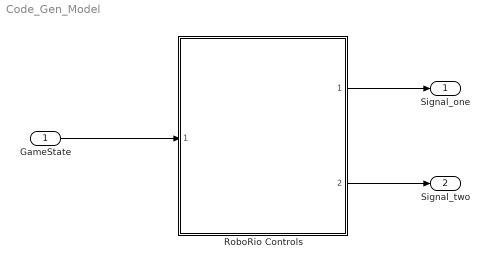
/*
 * Sponsored License - for use in support of a program or activity
 * sponsored by MathWorks.  Not for government, commercial or other
 * non-sponsored organizational use.
 *
 * File: Code_Gen_Model.c
 *
 * Code generated for Simulink model 'Code_Gen_Model'.
 *
 * Model version                  : 5.3
 * Simulink Coder version         : 25.1 (R2025a) 21-Nov-2024
 * C/C++ source code generated on : Thu Jul 10 13:41:32 2025
 *
 * Target selection: ert.tlc
 * Embedded hardware selection: ARM Compatible->ARM 7
 * Code generation objectives: Unspecified
 * Validation result: Not run
 */

#include "Code_Gen_Model.h"
#include <math.h>
#include "rt_nonfinite.h"
#include "rtwtypes.h"

/* Exported block parameters */
real_T Auto_Signal_one = 50.0;         /* Variable: Auto_Signal_one
                                        * Referenced by: '<S7>/Constant'
                                        */
real_T Auto_Signal_two = 60.0;         /* Variable: Auto_Signal_two
                                        * Referenced by: '<S7>/Constant1'
                                        */
real_T Teleop_Signal_one = 10.0;       /* Variable: Teleop_Signal_one
                                        * Referenced by: '<S8>/Constant'
                                        */
real_T Teleop_Signal_two = 20.0;       /* Variable: Teleop_Signal_two
                                        * Referenced by: '<S8>/Constant1'
                                        */

/* Block signals (default storage) */
B_Code_Gen_Model_T Code_Gen_Model_B;

/* External inputs (root inport signals with default storage) */
ExtU_Code_Gen_Model_T Code_Gen_Model_U;

/* External outputs (root outports fed by signals with default storage) */
ExtY_Code_Gen_Model_T Code_Gen_Model_Y;

/* Real-time model */
static RT_MODEL_Code_Gen_Model_T Code_Gen_Model_M_;
RT_MODEL_Code_Gen_Model_T *const Code_Gen_Model_M = &Code_Gen_Model_M_;

/* Model step function */
void Code_Gen_Model_step(void)
{
  real_T tmp;

  /* SwitchCase: '<S1>/Switch Case' incorporates:
   *  Constant: '<S8>/Constant'
   *  Inport: '<Root>/GameState'
   */
  tmp = trunc(Code_Gen_Model_U.GameState);
  if ((rtIsNaN(tmp)) || (rtIsInf(tmp))) {
    tmp = 0.0;
  } else {
    tmp = fmod(tmp, 4.294967296E+9);
  }

  switch ((tmp < 0.0) ? (-((int32_T)((uint32_T)(-tmp)))) : ((int32_T)((uint32_T)
            tmp))) {
   case 0:
    /* Outputs for IfAction SubSystem: '<S1>/Disabled' incorporates:
     *  ActionPort: '<S3>/Action Port'
     */
    /* Outport: '<Root>/Signal_one' incorporates:
     *  Constant: '<S3>/Constant'
     *  SignalConversion generated from: '<S3>/Signal_one'
     */
    Code_Gen_Model_Y.Signal_one = 0.0;

    /* Outport: '<Root>/Signal_two' incorporates:
     *  Constant: '<S3>/Constant1'
     *  SignalConversion generated from: '<S3>/Signal_two'
     */
    Code_Gen_Model_Y.Signal_two = 0.0;

    /* End of Outputs for SubSystem: '<S1>/Disabled' */
    break;

   case 1:
    /* Outputs for IfAction SubSystem: '<S1>/Autonomous' incorporates:
     *  ActionPort: '<S2>/Action Port'
     */
    /* Outport: '<Root>/Signal_one' incorporates:
     *  Constant: '<S7>/Constant'
     *  SignalConversion generated from: '<S2>/Signal_one'
     */
    Code_Gen_Model_Y.Signal_one = Auto_Signal_one;

    /* Outport: '<Root>/Signal_two' incorporates:
     *  Constant: '<S7>/Constant1'
     *  SignalConversion generated from: '<S2>/Signal_two'
     */
    Code_Gen_Model_Y.Signal_two = Auto_Signal_two;

    /* End of Outputs for SubSystem: '<S1>/Autonomous' */
    break;

   case 2:
    /* Outputs for IfAction SubSystem: '<S1>/Teleop' incorporates:
     *  ActionPort: '<S5>/Action Port'
     */
    Code_Gen_Model_B.Signal_one = Teleop_Signal_one;

    /* Outport: '<Root>/Signal_one' incorporates:
     *  Constant: '<S8>/Constant'
     *  SignalConversion generated from: '<S5>/Signal_one'
     */
    Code_Gen_Model_Y.Signal_one = Code_Gen_Model_B.Signal_one;

    /* Outport: '<Root>/Signal_two' incorporates:
     *  Constant: '<S8>/Constant1'
     *  SignalConversion generated from: '<S5>/Signal_two'
     */
    Code_Gen_Model_Y.Signal_two = Teleop_Signal_two;

    /* End of Outputs for SubSystem: '<S1>/Teleop' */
    break;

   default:
    /* Outputs for IfAction SubSystem: '<S1>/Test' incorporates:
     *  ActionPort: '<S6>/Action Port'
     */
    /* Outport: '<Root>/Signal_one' incorporates:
     *  Constant: '<S6>/Constant'
     *  SignalConversion generated from: '<S6>/Signal_one'
     */
    Code_Gen_Model_Y.Signal_one = 0.0;

    /* Outport: '<Root>/Signal_two' incorporates:
     *  Constant: '<S6>/Constant1'
     *  SignalConversion generated from: '<S6>/Signal_two'
     */
    Code_Gen_Model_Y.Signal_two = 0.0;

    /* End of Outputs for SubSystem: '<S1>/Test' */
    break;
  }

  /* End of SwitchCase: '<S1>/Switch Case' */
}
